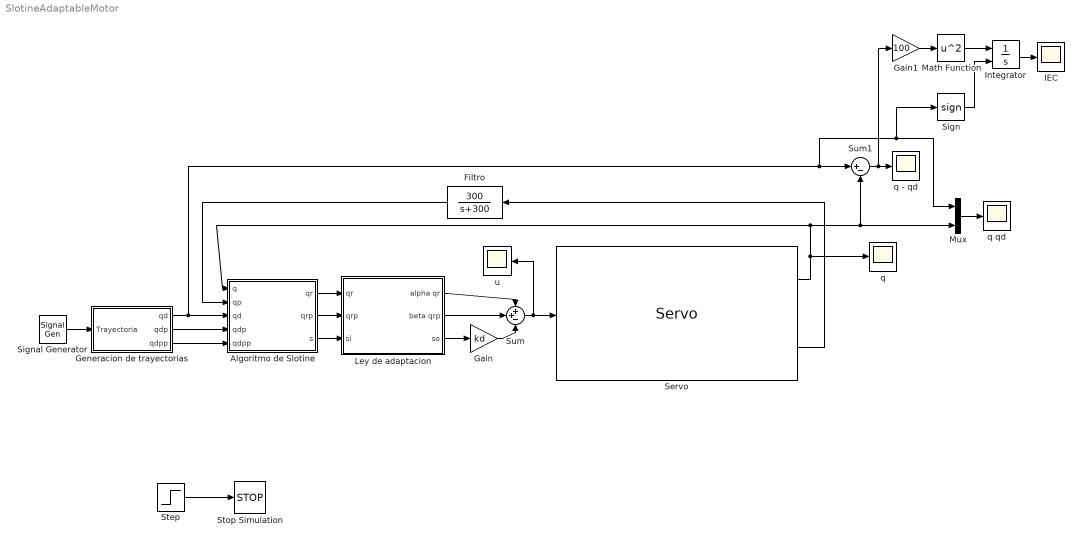
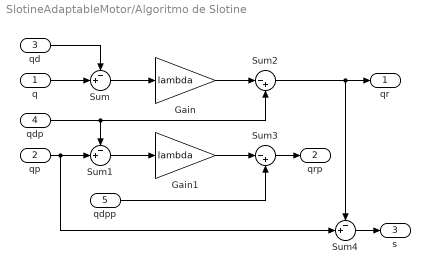
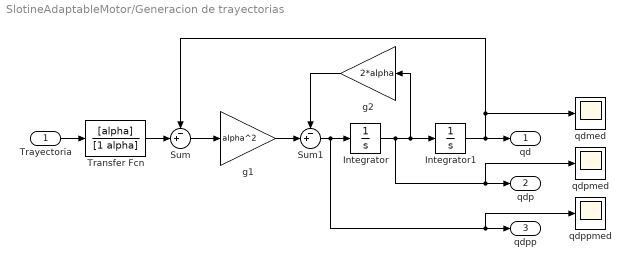
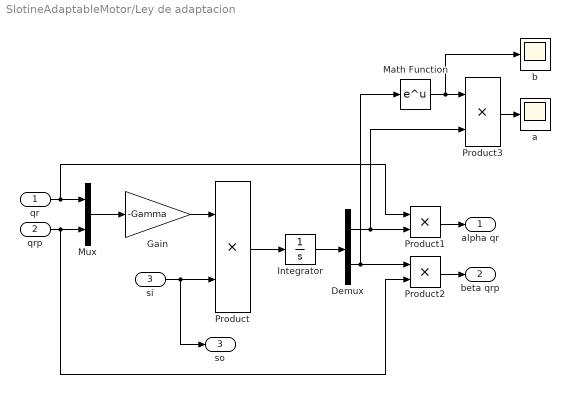
/*
 * SlotineAdaptableMotor.c
 *
 * Real-Time Workshop code generation for Simulink model "SlotineAdaptableMotor.mdl".
 *
 * Model Version              : 1.22
 * Real-Time Workshop version : 6.6  (R2007a)  01-Feb-2007
 * C source code generated on : Thu Apr 16 11:46:18 2015
 */

#include "SlotineAdaptableMotor.h"
#include "SlotineAdaptableMotor_private.h"
#include <stdio.h>
#include "SlotineAdaptableMotor_dt.h"

/* Block signals (auto storage) */
BlockIO_SlotineAdaptableMotor SlotineAdaptableMotor_B;

/* Continuous states */
ContinuousStates_SlotineAdaptableMotor SlotineAdaptableMotor_X;

/* Block states (auto storage) */
D_Work_SlotineAdaptableMotor SlotineAdaptableMotor_DWork;

/* Previous zero-crossings (trigger) states */
PrevZCSigStates_SlotineAdaptableMotor SlotineAdaptableMotor_PrevZCSigState;

/* Real-time model */
RT_MODEL_SlotineAdaptableMotor SlotineAdaptableMotor_M_;
RT_MODEL_SlotineAdaptableMotor *SlotineAdaptableMotor_M =
  &SlotineAdaptableMotor_M_;

/* This function updates continuous states using the ODE1 fixed-step
 * solver algorithm
 */
static void rt_ertODEUpdateContinuousStates(RTWSolverInfo *si )
{
  time_T tnew = rtsiGetSolverStopTime(si);
  time_T h = rtsiGetStepSize(si);
  real_T *x = rtsiGetContStates(si);
  ODE1_IntgData *id = (ODE1_IntgData *)rtsiGetSolverData(si);
  real_T *f0 = id->f[0];
  int_T i;
  int_T nXc = 7;
  rtsiSetSimTimeStep(si,MINOR_TIME_STEP);
  rtsiSetdX(si, f0);
  SlotineAdaptableMotor_derivatives();
  rtsiSetT(si, tnew);
  for (i = 0; i < nXc; i++) {
    *x += h * f0[i];
    x++;
  }

  rtsiSetSimTimeStep(si,MAJOR_TIME_STEP);
}

/* Model output function */
void SlotineAdaptableMotor_output(int_T tid)
{
  /* Update absolute time of base rate at minor time step */
  if (rtmIsMinorTimeStep(SlotineAdaptableMotor_M)) {
    SlotineAdaptableMotor_M->Timing.t[0] = rtsiGetT
      (&SlotineAdaptableMotor_M->solverInfo);
  }

  if (rtmIsMajorTimeStep(SlotineAdaptableMotor_M)) {
    /* set solver stop time */
    rtsiSetSolverStopTime(&SlotineAdaptableMotor_M->solverInfo,
                          ((SlotineAdaptableMotor_M->Timing.clockTick0+1)*
      SlotineAdaptableMotor_M->Timing.stepSize0));
  }                                    /* end MajorTimeStep */

  /* Integrator Block: '<S2>/Integrator1'
   */
  SlotineAdaptableMotor_B.Integrator1 =
    SlotineAdaptableMotor_X.Integrator1_CSTATE;

  /* Signum: '<Root>/Sign' */
  SlotineAdaptableMotor_B.Sign = rt_SGN(SlotineAdaptableMotor_B.Integrator1);

  /* Integrator Block: '<Root>/Integrator'
   */
  if (rtmIsMajorTimeStep(SlotineAdaptableMotor_M)) {
    ZCEventType zcEvent;
    zcEvent = rt_ZCFcn(RISING_ZERO_CROSSING,
                       &SlotineAdaptableMotor_PrevZCSigState.Integrator_ZCE,
                       SlotineAdaptableMotor_B.Sign);

    /* evaluate zero-crossings */
    if (zcEvent) {
      SlotineAdaptableMotor_X.Integrator_CSTATE =
        SlotineAdaptableMotor_P.Integrator_IC;
    }
  }

  SlotineAdaptableMotor_B.Integrator = SlotineAdaptableMotor_X.Integrator_CSTATE;
  if (rtmIsMajorTimeStep(SlotineAdaptableMotor_M) &&
      SlotineAdaptableMotor_M->Timing.TaskCounters.TID[1] == 0) {/* Sample time: [0.001s, 0.0s] */
    /* Level1 S-Function Block: '<S7>/Int Decod' (stgenc) */
    {
      SimStruct *rts = SlotineAdaptableMotor_M->childSfunctions[0];
      real_T *sfcnU = ssGetU(rts);
      real_T *sfcnX = ssGetContStates(rts);
      real_T *sfcnY = &(SlotineAdaptableMotor_B.IntDecod[0]);
      sfcnOutputsLevel1(sfcnY, sfcnX, sfcnU, rts, 1);
    }

    /* Gain: '<S4>/Gain' */
    SlotineAdaptableMotor_B.Gain = SlotineAdaptableMotor_P.Gain_Gain *
      SlotineAdaptableMotor_B.IntDecod[0];
  }

  /* Sum: '<Root>/Sum1' */
  SlotineAdaptableMotor_B.Sum1 = SlotineAdaptableMotor_B.Integrator1 -
    SlotineAdaptableMotor_B.Gain;

  /* Sum: '<S1>/Sum' */
  SlotineAdaptableMotor_B.Sum = SlotineAdaptableMotor_B.Gain -
    SlotineAdaptableMotor_B.Integrator1;

  /* Gain: '<S1>/Gain' */
  SlotineAdaptableMotor_B.Gain_c = SlotineAdaptableMotor_P.Gain_Gain_j *
    SlotineAdaptableMotor_B.Sum;

  /* Integrator Block: '<S2>/Integrator'
   */
  SlotineAdaptableMotor_B.Integrator_a =
    SlotineAdaptableMotor_X.Integrator_CSTATE_f;

  /* Sum: '<S1>/Sum2' */
  SlotineAdaptableMotor_B.Sum2 = SlotineAdaptableMotor_B.Integrator_a -
    SlotineAdaptableMotor_B.Gain_c;

  /* Integrator Block: '<S3>/Integrator'
   */
  SlotineAdaptableMotor_B.Integrator_f[0] =
    SlotineAdaptableMotor_X.Integrator_CSTATE_b[0];
  SlotineAdaptableMotor_B.Integrator_f[1] =
    SlotineAdaptableMotor_X.Integrator_CSTATE_b[1];

  /* Product: '<S3>/Product1' */
  SlotineAdaptableMotor_B.Product1 = SlotineAdaptableMotor_B.Sum2 *
    SlotineAdaptableMotor_B.Integrator_f[0];

  /* TransferFcn Block: '<Root>/Filtro' */
  SlotineAdaptableMotor_B.Filtro = SlotineAdaptableMotor_P.Filtro_C*
    SlotineAdaptableMotor_X.Filtro_CSTATE;

  /* Sum: '<S1>/Sum1' */
  SlotineAdaptableMotor_B.Sum1_k = SlotineAdaptableMotor_B.Filtro -
    SlotineAdaptableMotor_B.Integrator_a;

  /* Gain: '<S1>/Gain1' */
  SlotineAdaptableMotor_B.Gain1 = SlotineAdaptableMotor_P.Gain1_Gain *
    SlotineAdaptableMotor_B.Sum1_k;

  /* Gain: '<S2>/g2' */
  SlotineAdaptableMotor_B.g2 = SlotineAdaptableMotor_P.g2_Gain *
    SlotineAdaptableMotor_B.Integrator_a;

  /* TransferFcn Block: '<S2>/Transfer Fcn' */
  SlotineAdaptableMotor_B.TransferFcn = SlotineAdaptableMotor_P.TransferFcn_C*
    SlotineAdaptableMotor_X.TransferFcn_CSTATE;

  /* Sum: '<S2>/Sum' */
  SlotineAdaptableMotor_B.Sum_n = SlotineAdaptableMotor_B.TransferFcn -
    SlotineAdaptableMotor_B.Integrator1;

  /* Gain: '<S2>/g1' */
  SlotineAdaptableMotor_B.g1 = SlotineAdaptableMotor_P.g1_Gain *
    SlotineAdaptableMotor_B.Sum_n;

  /* Sum: '<S2>/Sum1' */
  SlotineAdaptableMotor_B.Sum1_e = SlotineAdaptableMotor_B.g1 -
    SlotineAdaptableMotor_B.g2;

  /* Sum: '<S1>/Sum3' */
  SlotineAdaptableMotor_B.Sum3 = SlotineAdaptableMotor_B.Sum1_e -
    SlotineAdaptableMotor_B.Gain1;

  /* Product: '<S3>/Product2' */
  SlotineAdaptableMotor_B.Product2 = SlotineAdaptableMotor_B.Integrator_f[1] *
    SlotineAdaptableMotor_B.Sum3;

  /* Sum: '<S1>/Sum4' */
  SlotineAdaptableMotor_B.Sum4 = SlotineAdaptableMotor_B.Filtro -
    SlotineAdaptableMotor_B.Sum2;

  /* Gain: '<Root>/Gain' */
  SlotineAdaptableMotor_B.Gain_p = SlotineAdaptableMotor_P.Gain_Gain_m *
    SlotineAdaptableMotor_B.Sum4;

  /* Sum: '<Root>/Sum' */
  SlotineAdaptableMotor_B.Sum_a = (SlotineAdaptableMotor_B.Product1 +
    SlotineAdaptableMotor_B.Product2) - SlotineAdaptableMotor_B.Gain_p;

  /* Gain: '<Root>/Gain1' */
  SlotineAdaptableMotor_B.Gain1_c = SlotineAdaptableMotor_P.Gain1_Gain_g *
    SlotineAdaptableMotor_B.Sum1;

  /* Math: '<S3>/Math Function' */
  SlotineAdaptableMotor_B.MathFunction = exp
    (SlotineAdaptableMotor_B.Integrator_f[1]);

  /* Product: '<S3>/Product3' */
  SlotineAdaptableMotor_B.Product3 = SlotineAdaptableMotor_B.MathFunction *
    SlotineAdaptableMotor_B.Integrator_f[0];

  {
    real_T tmp;
    real_T tmp_0;

    /* Gain: '<S3>/Gain' */
    tmp = SlotineAdaptableMotor_B.Sum2;
    tmp_0 = SlotineAdaptableMotor_B.Sum3;
    SlotineAdaptableMotor_B.Gain_i[0] = SlotineAdaptableMotor_P.Gain_Gain_f[0] *
      tmp;
    SlotineAdaptableMotor_B.Gain_i[1] = SlotineAdaptableMotor_P.Gain_Gain_f[1] *
      tmp_0;

    /* Product: '<S3>/Product' */
    SlotineAdaptableMotor_B.Product[0] = SlotineAdaptableMotor_B.Gain_i[0] *
      SlotineAdaptableMotor_B.Sum4;
    SlotineAdaptableMotor_B.Product[1] = SlotineAdaptableMotor_B.Gain_i[1] *
      SlotineAdaptableMotor_B.Sum4;

    /* Math: '<Root>/Math Function' */
    SlotineAdaptableMotor_B.MathFunction_o = SlotineAdaptableMotor_B.Gain1_c *
      SlotineAdaptableMotor_B.Gain1_c;
  }

  if (rtmIsMajorTimeStep(SlotineAdaptableMotor_M) &&
      SlotineAdaptableMotor_M->Timing.TaskCounters.TID[1] == 0) {/* Sample time: [0.001s, 0.0s] */
    /* Level1 S-Function Block: '<S5>/Int AD' (stgad) */
    {
      SimStruct *rts = SlotineAdaptableMotor_M->childSfunctions[1];
      real_T *sfcnU = ssGetU(rts);
      real_T *sfcnX = ssGetContStates(rts);
      real_T *sfcnY = &(SlotineAdaptableMotor_B.IntAD[0]);
      sfcnOutputsLevel1(sfcnY, sfcnX, sfcnU, rts, 1);
    }

    /* Gain: '<S4>/Gain1' */
    SlotineAdaptableMotor_B.Gain1_e = SlotineAdaptableMotor_P.Gain1_Gain_p *
      SlotineAdaptableMotor_B.IntAD[0];

    /* Level1 S-Function Block: '<S6>/Int AD' (stgda) */
    {
      SimStruct *rts = SlotineAdaptableMotor_M->childSfunctions[2];
      real_T *sfcnU = ssGetU(rts);
      real_T *sfcnX = ssGetContStates(rts);
      sfcnOutputsLevel1(NULL, sfcnX, sfcnU, rts, 1);
    }
  }

  /* SignalGenerator Block: '<Root>/Signal Generator'
   */
  {
    real_T sin2PiFT = sin(6.2831853071795862E+000*
                          SlotineAdaptableMotor_P.SignalGenerator_Frequency*
                          SlotineAdaptableMotor_M->Timing.t[0]);
    SlotineAdaptableMotor_B.SignalGenerator =
      SlotineAdaptableMotor_P.SignalGenerator_Amplitude*sin2PiFT;
  }

  {
    real_T currentTime;

    /* Step: '<Root>/Step' */
    currentTime = SlotineAdaptableMotor_M->Timing.t[0];
    if (currentTime < SlotineAdaptableMotor_P.Step_Time) {
      SlotineAdaptableMotor_B.Step = SlotineAdaptableMotor_P.Step_Y0;
    } else {
      SlotineAdaptableMotor_B.Step = SlotineAdaptableMotor_P.Step_YFinal;
    }
  }

  if (rtmIsMajorTimeStep(SlotineAdaptableMotor_M) &&
      SlotineAdaptableMotor_M->Timing.TaskCounters.TID[1] == 0) {/* Sample time: [0.001s, 0.0s] */
    /* Stop Block: '<Root>/Stop Simulation'
     */
    if (SlotineAdaptableMotor_B.Step != 0.0) {
      rtmSetStopRequested(SlotineAdaptableMotor_M, 1);
    }
  }

  UNUSED_PARAMETER(tid);
}

/* Model update function */
void SlotineAdaptableMotor_update(int_T tid)
{
  if (rtmIsMajorTimeStep(SlotineAdaptableMotor_M) &&
      SlotineAdaptableMotor_M->Timing.TaskCounters.TID[1] == 0) {/* Sample time: [0.001s, 0.0s] */
    /* Level1 S-Function Block: '<S7>/Int Decod' (stgenc) */
    {
      SimStruct *rts = SlotineAdaptableMotor_M->childSfunctions[0];
      real_T *sfcnU = ssGetU(rts);
      real_T *sfcnX = ssGetContStates(rts);
      sfcnUpdateLevel1(sfcnX, sfcnU, rts, 1);
      if (ssGetErrorStatus(rts) != NULL)
        return;
    }

    /* Level1 S-Function Block: '<S5>/Int AD' (stgad) */
    {
      SimStruct *rts = SlotineAdaptableMotor_M->childSfunctions[1];
      real_T *sfcnU = ssGetU(rts);
      real_T *sfcnX = ssGetContStates(rts);
      sfcnUpdateLevel1(sfcnX, sfcnU, rts, 1);
      if (ssGetErrorStatus(rts) != NULL)
        return;
    }

    /* Level1 S-Function Block: '<S6>/Int AD' (stgda) */
    {
      SimStruct *rts = SlotineAdaptableMotor_M->childSfunctions[2];
      real_T *sfcnU = ssGetU(rts);
      real_T *sfcnX = ssGetContStates(rts);
      sfcnUpdateLevel1(sfcnX, sfcnU, rts, 1);
      if (ssGetErrorStatus(rts) != NULL)
        return;
    }
  }

  if (rtmIsMajorTimeStep(SlotineAdaptableMotor_M)) {
    rt_ertODEUpdateContinuousStates(&SlotineAdaptableMotor_M->solverInfo);
  }

  /* Update absolute time for base rate */
  if (!(++SlotineAdaptableMotor_M->Timing.clockTick0))
    ++SlotineAdaptableMotor_M->Timing.clockTickH0;
  SlotineAdaptableMotor_M->Timing.t[0] =
    SlotineAdaptableMotor_M->Timing.clockTick0 *
    SlotineAdaptableMotor_M->Timing.stepSize0 +
    SlotineAdaptableMotor_M->Timing.clockTickH0 *
    SlotineAdaptableMotor_M->Timing.stepSize0 * 4294967296.0;
  if (rtmIsMajorTimeStep(SlotineAdaptableMotor_M) &&
      SlotineAdaptableMotor_M->Timing.TaskCounters.TID[1] == 0) {
    /* Update absolute timer for sample time: [0.001s, 0.0s] */
    if (!(++SlotineAdaptableMotor_M->Timing.clockTick1))
      ++SlotineAdaptableMotor_M->Timing.clockTickH1;
    SlotineAdaptableMotor_M->Timing.t[1] =
      SlotineAdaptableMotor_M->Timing.clockTick1 *
      SlotineAdaptableMotor_M->Timing.stepSize1 +
      SlotineAdaptableMotor_M->Timing.clockTickH1 *
      SlotineAdaptableMotor_M->Timing.stepSize1 * 4294967296.0;
  }

  UNUSED_PARAMETER(tid);
}
